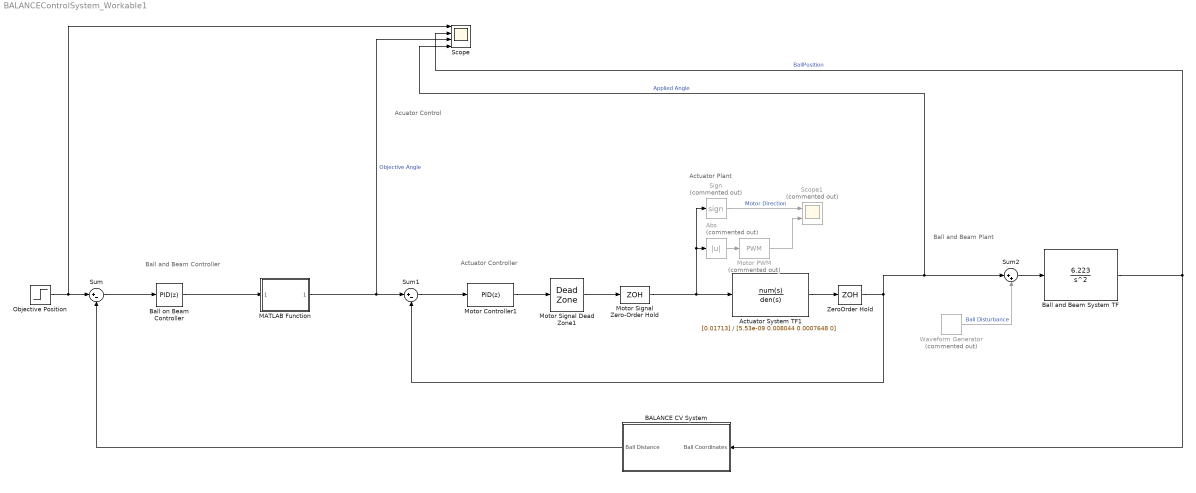
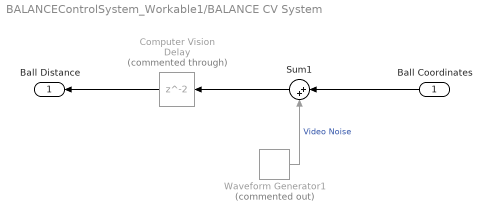
== matlab function BALANCEControlSystem_Workable1/MATLAB Function ==
function angleout = disturb(anglein)

if(abs(anglein)<0.01 && abs(anglein)>0.001)
    angleout=sign(anglein)*0.01;
else
    angleout=anglein;
end
end

/*
 * BALANCEControlSystem_Workable1.c
 *
 * Academic License - for use in teaching, academic research, and meeting
 * course requirements at degree granting institutions only.  Not for
 * government, commercial, or other organizational use.
 *
 * Code generation for model "BALANCEControlSystem_Workable1".
 *
 * Model version              : 1.72
 * Simulink Coder version : 9.7 (R2022a) 13-Nov-2021
 * C source code generated on : Mon Aug  8 18:08:28 2022
 *
 * Target selection: grt.tlc
 * Note: GRT includes extra infrastructure and instrumentation for prototyping
 * Embedded hardware selection: Intel->x86-64 (Windows64)
 * Code generation objective: Debugging
 * Validation result: Not run
 */

#include "BALANCEControlSystem_Workable1.h"
#include <math.h>
#include "rt_nonfinite.h"
#include "rtwtypes.h"
#include "BALANCEControlSystem_Workable1_private.h"

/* Block signals (default storage) */
B_BALANCEControlSystem_Workab_T BALANCEControlSystem_Workable_B;

/* Continuous states */
X_BALANCEControlSystem_Workab_T BALANCEControlSystem_Workable_X;

/* Block states (default storage) */
DW_BALANCEControlSystem_Worka_T BALANCEControlSystem_Workabl_DW;

/* Real-time model */
static RT_MODEL_BALANCEControlSystem_T BALANCEControlSystem_Workabl_M_;
RT_MODEL_BALANCEControlSystem_T *const BALANCEControlSystem_Workabl_M =
  &BALANCEControlSystem_Workabl_M_;

/*
 * This function updates continuous states using the ODE3 fixed-step
 * solver algorithm
 */
static void rt_ertODEUpdateContinuousStates(RTWSolverInfo *si )
{
  /* Solver Matrices */
  static const real_T rt_ODE3_A[3] = {
    1.0/2.0, 3.0/4.0, 1.0
  };

  static const real_T rt_ODE3_B[3][3] = {
    { 1.0/2.0, 0.0, 0.0 },

    { 0.0, 3.0/4.0, 0.0 },

    { 2.0/9.0, 1.0/3.0, 4.0/9.0 }
  };

  time_T t = rtsiGetT(si);
  time_T tnew = rtsiGetSolverStopTime(si);
  time_T h = rtsiGetStepSize(si);
  real_T *x = rtsiGetContStates(si);
  ODE3_IntgData *id = (ODE3_IntgData *)rtsiGetSolverData(si);
  real_T *y = id->y;
  real_T *f0 = id->f[0];
  real_T *f1 = id->f[1];
  real_T *f2 = id->f[2];
  real_T hB[3];
  int_T i;
  int_T nXc = 5;
  rtsiSetSimTimeStep(si,MINOR_TIME_STEP);

  /* Save the state values at time t in y, we'll use x as ynew. */
  (void) memcpy(y, x,
                (uint_T)nXc*sizeof(real_T));

  /* Assumes that rtsiSetT and ModelOutputs are up-to-date */
  /* f0 = f(t,y) */
  rtsiSetdX(si, f0);
  BALANCEControlSystem_Workable1_derivatives();

  /* f(:,2) = feval(odefile, t + hA(1), y + f*hB(:,1), args(:)(*)); */
  hB[0] = h * rt_ODE3_B[0][0];
  for (i = 0; i < nXc; i++) {
    x[i] = y[i] + (f0[i]*hB[0]);
  }

  rtsiSetT(si, t + h*rt_ODE3_A[0]);
  rtsiSetdX(si, f1);
  BALANCEControlSystem_Workable1_step();
  BALANCEControlSystem_Workable1_derivatives();

  /* f(:,3) = feval(odefile, t + hA(2), y + f*hB(:,2), args(:)(*)); */
  for (i = 0; i <= 1; i++) {
    hB[i] = h * rt_ODE3_B[1][i];
  }

  for (i = 0; i < nXc; i++) {
    x[i] = y[i] + (f0[i]*hB[0] + f1[i]*hB[1]);
  }

  rtsiSetT(si, t + h*rt_ODE3_A[1]);
  rtsiSetdX(si, f2);
  BALANCEControlSystem_Workable1_step();
  BALANCEControlSystem_Workable1_derivatives();

  /* tnew = t + hA(3);
     ynew = y + f*hB(:,3); */
  for (i = 0; i <= 2; i++) {
    hB[i] = h * rt_ODE3_B[2][i];
  }

  for (i = 0; i < nXc; i++) {
    x[i] = y[i] + (f0[i]*hB[0] + f1[i]*hB[1] + f2[i]*hB[2]);
  }

  rtsiSetT(si, tnew);
  rtsiSetSimTimeStep(si,MAJOR_TIME_STEP);
}

/* Model step function */
void BALANCEControlSystem_Workable1_step(void)
{
  real_T currentTime;
  if (rtmIsMajorTimeStep(BALANCEControlSystem_Workabl_M)) {
    /* set solver stop time */
    if (!(BALANCEControlSystem_Workabl_M->Timing.clockTick0+1)) {
      rtsiSetSolverStopTime(&BALANCEControlSystem_Workabl_M->solverInfo,
                            ((BALANCEControlSystem_Workabl_M->Timing.clockTickH0
        + 1) * BALANCEControlSystem_Workabl_M->Timing.stepSize0 * 4294967296.0));
    } else {
      rtsiSetSolverStopTime(&BALANCEControlSystem_Workabl_M->solverInfo,
                            ((BALANCEControlSystem_Workabl_M->Timing.clockTick0
        + 1) * BALANCEControlSystem_Workabl_M->Timing.stepSize0 +
        BALANCEControlSystem_Workabl_M->Timing.clockTickH0 *
        BALANCEControlSystem_Workabl_M->Timing.stepSize0 * 4294967296.0));
    }
  }                                    /* end MajorTimeStep */

  /* Update absolute time of base rate at minor time step */
  if (rtmIsMinorTimeStep(BALANCEControlSystem_Workabl_M)) {
    BALANCEControlSystem_Workabl_M->Timing.t[0] = rtsiGetT
      (&BALANCEControlSystem_Workabl_M->solverInfo);
  }

  /* Step: '<Root>/Objective Position' */
  currentTime = BALANCEControlSystem_Workabl_M->Timing.t[0];
  if (currentTime < BALANCEControlSystem_Workable_P.ObjectivePosition_Time) {
    /* Step: '<Root>/Objective Position' */
    BALANCEControlSystem_Workable_B.ObjectivePosition =
      BALANCEControlSystem_Workable_P.ObjectivePosition_Y0;
  } else {
    /* Step: '<Root>/Objective Position' */
    BALANCEControlSystem_Workable_B.ObjectivePosition =
      BALANCEControlSystem_Workable_P.ObjectivePosition_YFinal;
  }

  /* End of Step: '<Root>/Objective Position' */

  /* TransferFcn: '<Root>/Ball and Beam System TF' */
  BALANCEControlSystem_Workable_B.BallPosition = 0.0;
  BALANCEControlSystem_Workable_B.BallPosition +=
    BALANCEControlSystem_Workable_P.BallandBeamSystemTF_C[0] *
    BALANCEControlSystem_Workable_X.BallandBeamSystemTF_CSTATE[0];
  BALANCEControlSystem_Workable_B.BallPosition +=
    BALANCEControlSystem_Workable_P.BallandBeamSystemTF_C[1] *
    BALANCEControlSystem_Workable_X.BallandBeamSystemTF_CSTATE[1];

  /* Sum: '<S1>/Sum1' */
  BALANCEControlSystem_Workable_B.Sum1 =
    BALANCEControlSystem_Workable_B.BallPosition;

  /* Sum: '<Root>/Sum' */
  BALANCEControlSystem_Workable_B.Sum =
    BALANCEControlSystem_Workable_B.ObjectivePosition -
    BALANCEControlSystem_Workable_B.Sum1;

  /* TransferFcn: '<Root>/Actuator System TF1' */
  BALANCEControlSystem_Workable_B.ActuatorSystemTF1 =
    BALANCEControlSystem_Workable_P.ActuatorSystemTF1_C[0] *
    BALANCEControlSystem_Workable_X.ActuatorSystemTF1_CSTATE[0];
  BALANCEControlSystem_Workable_B.ActuatorSystemTF1 +=
    BALANCEControlSystem_Workable_P.ActuatorSystemTF1_C[1] *
    BALANCEControlSystem_Workable_X.ActuatorSystemTF1_CSTATE[1];
  BALANCEControlSystem_Workable_B.ActuatorSystemTF1 +=
    BALANCEControlSystem_Workable_P.ActuatorSystemTF1_C[2] *
    BALANCEControlSystem_Workable_X.ActuatorSystemTF1_CSTATE[2];
  if (rtmIsMajorTimeStep(BALANCEControlSystem_Workabl_M)) {
    real_T u1;
    real_T u2;

    /* Gain: '<S43>/Proportional Gain' */
    BALANCEControlSystem_Workable_B.ProportionalGain =
      BALANCEControlSystem_Workable_P.BallonBeamController_P *
      BALANCEControlSystem_Workable_B.Sum;

    /* DiscreteIntegrator: '<S38>/Integrator' */
    BALANCEControlSystem_Workable_B.Integrator =
      BALANCEControlSystem_Workabl_DW.Integrator_DSTATE;

    /* Gain: '<S32>/Derivative Gain' */
    BALANCEControlSystem_Workable_B.DerivativeGain =
      BALANCEControlSystem_Workable_P.BallonBeamController_D *
      BALANCEControlSystem_Workable_B.Sum;

    /* DiscreteIntegrator: '<S33>/Filter' */
    BALANCEControlSystem_Workable_B.Filter =
      BALANCEControlSystem_Workabl_DW.Filter_DSTATE;

    /* Sum: '<S33>/SumD' */
    BALANCEControlSystem_Workable_B.SumD =
      BALANCEControlSystem_Workable_B.DerivativeGain -
      BALANCEControlSystem_Workable_B.Filter;

    /* Gain: '<S41>/Filter Coefficient' */
    BALANCEControlSystem_Workable_B.FilterCoefficient =
      BALANCEControlSystem_Workable_P.BallonBeamController_N *
      BALANCEControlSystem_Workable_B.SumD;

    /* Sum: '<S47>/Sum' */
    BALANCEControlSystem_Workable_B.Sum_l =
      (BALANCEControlSystem_Workable_B.ProportionalGain +
       BALANCEControlSystem_Workable_B.Integrator) +
      BALANCEControlSystem_Workable_B.FilterCoefficient;

    /* Saturate: '<S45>/Saturation' */
    currentTime = BALANCEControlSystem_Workable_B.Sum_l;
    u1 = BALANCEControlSystem_Workable_P.BallonBeamController_LowerSatur;
    u2 = BALANCEControlSystem_Workable_P.BallonBeamController_UpperSatur;
    if (currentTime > u2) {
      /* Saturate: '<S45>/Saturation' */
      BALANCEControlSystem_Workable_B.Saturation = u2;
    } else if (currentTime < u1) {
      /* Saturate: '<S45>/Saturation' */
      BALANCEControlSystem_Workable_B.Saturation = u1;
    } else {
      /* Saturate: '<S45>/Saturation' */
      BALANCEControlSystem_Workable_B.Saturation = currentTime;
    }

    /* End of Saturate: '<S45>/Saturation' */

    /* MATLAB Function: '<Root>/MATLAB Function' */
    /* :  if(abs(anglein)<0.01 && abs(anglein)>0.001) */
    if ((fabs(BALANCEControlSystem_Workable_B.Saturation) < 0.01) && (fabs
         (BALANCEControlSystem_Workable_B.Saturation) > 0.001)) {
      /* :  angleout=sign(anglein)*0.01; */
      currentTime = BALANCEControlSystem_Workable_B.Saturation;
      if (!rtIsNaN(currentTime)) {
        if (currentTime < 0.0) {
          currentTime = -1.0;
        } else {
          currentTime = (currentTime > 0.0);
        }
      }

      BALANCEControlSystem_Workable_B.angleout = currentTime * 0.01;
    } else {
      /* :  else */
      /* :  angleout=anglein; */
      BALANCEControlSystem_Workable_B.angleout =
        BALANCEControlSystem_Workable_B.Saturation;
    }

    /* End of MATLAB Function: '<Root>/MATLAB Function' */

    /* ZeroOrderHold: '<Root>/ZeroOrder Hold' */
    BALANCEControlSystem_Workable_B.AppliedAngle =
      BALANCEControlSystem_Workable_B.ActuatorSystemTF1;

    /* DeadZone: '<S31>/DeadZone' */
    if (BALANCEControlSystem_Workable_B.Sum_l >
        BALANCEControlSystem_Workable_P.BallonBeamController_UpperSatur) {
      /* DeadZone: '<S31>/DeadZone' */
      BALANCEControlSystem_Workable_B.DeadZone =
        BALANCEControlSystem_Workable_B.Sum_l -
        BALANCEControlSystem_Workable_P.BallonBeamController_UpperSatur;
    } else if (BALANCEControlSystem_Workable_B.Sum_l >=
               BALANCEControlSystem_Workable_P.BallonBeamController_LowerSatur)
    {
      /* DeadZone: '<S31>/DeadZone' */
      BALANCEControlSystem_Workable_B.DeadZone = 0.0;
    } else {
      /* DeadZone: '<S31>/DeadZone' */
      BALANCEControlSystem_Workable_B.DeadZone =
        BALANCEControlSystem_Workable_B.Sum_l -
        BALANCEControlSystem_Workable_P.BallonBeamController_LowerSatur;
    }

    /* End of DeadZone: '<S31>/DeadZone' */

    /* RelationalOperator: '<S29>/Relational Operator' incorporates:
     *  Constant: '<S29>/Constant5'
     */
    BALANCEControlSystem_Workable_B.RelationalOperator =
      (BALANCEControlSystem_Workable_P.Constant5_Value !=
       BALANCEControlSystem_Workable_B.DeadZone);

    /* RelationalOperator: '<S29>/fix for DT propagation issue' incorporates:
     *  Constant: '<S29>/Constant5'
     */
    BALANCEControlSystem_Workable_B.fixforDTpropagationissue =
      (BALANCEControlSystem_Workable_B.DeadZone >
       BALANCEControlSystem_Workable_P.Constant5_Value);

    /* Switch: '<S29>/Switch1' */
    if (BALANCEControlSystem_Workable_B.fixforDTpropagationissue) {
      /* Switch: '<S29>/Switch1' incorporates:
       *  Constant: '<S29>/Constant'
       */
      BALANCEControlSystem_Workable_B.Switch1 =
        BALANCEControlSystem_Workable_P.Constant_Value;
    } else {
      /* Switch: '<S29>/Switch1' incorporates:
       *  Constant: '<S29>/Constant2'
       */
      BALANCEControlSystem_Workable_B.Switch1 =
        BALANCEControlSystem_Workable_P.Constant2_Value;
    }

    /* End of Switch: '<S29>/Switch1' */

    /* Gain: '<S35>/Integral Gain' */
    BALANCEControlSystem_Workable_B.IntegralGain =
      BALANCEControlSystem_Workable_P.BallonBeamController_I *
      BALANCEControlSystem_Workable_B.Sum;

    /* RelationalOperator: '<S29>/fix for DT propagation issue1' incorporates:
     *  Constant: '<S29>/Constant5'
     */
    BALANCEControlSystem_Workable_B.fixforDTpropagationissue1 =
      (BALANCEControlSystem_Workable_B.IntegralGain >
       BALANCEControlSystem_Workable_P.Constant5_Value);

    /* Switch: '<S29>/Switch2' */
    if (BALANCEControlSystem_Workable_B.fixforDTpropagationissue1) {
      /* Switch: '<S29>/Switch2' incorporates:
       *  Constant: '<S29>/Constant3'
       */
      BALANCEControlSystem_Workable_B.Switch2 =
        BALANCEControlSystem_Workable_P.Constant3_Value;
    } else {
      /* Switch: '<S29>/Switch2' incorporates:
       *  Constant: '<S29>/Constant4'
       */
      BALANCEControlSystem_Workable_B.Switch2 =
        BALANCEControlSystem_Workable_P.Constant4_Value;
    }

    /* End of Switch: '<S29>/Switch2' */

    /* RelationalOperator: '<S29>/Equal1' */
    BALANCEControlSystem_Workable_B.Equal1 =
      (BALANCEControlSystem_Workable_B.Switch1 ==
       BALANCEControlSystem_Workable_B.Switch2);

    /* Logic: '<S29>/AND3' */
    BALANCEControlSystem_Workable_B.AND3 =
      (BALANCEControlSystem_Workable_B.RelationalOperator &&
       BALANCEControlSystem_Workable_B.Equal1);

    /* Switch: '<S29>/Switch' */
    if (BALANCEControlSystem_Workable_B.AND3) {
      /* Switch: '<S29>/Switch' incorporates:
       *  Constant: '<S29>/Constant1'
       */
      BALANCEControlSystem_Workable_B.Switch =
        BALANCEControlSystem_Workable_P.Constant1_Value;
    } else {
      /* Switch: '<S29>/Switch' */
      BALANCEControlSystem_Workable_B.Switch =
        BALANCEControlSystem_Workable_B.IntegralGain;
    }

    /* End of Switch: '<S29>/Switch' */

    /* Sum: '<Root>/Sum1' */
    BALANCEControlSystem_Workable_B.Sum1_h =
      BALANCEControlSystem_Workable_B.angleout -
      BALANCEControlSystem_Workable_B.AppliedAngle;

    /* Gain: '<S93>/Proportional Gain' */
    BALANCEControlSystem_Workable_B.ProportionalGain_n =
      BALANCEControlSystem_Workable_P.MotorController1_P *
      BALANCEControlSystem_Workable_B.Sum1_h;

    /* DiscreteIntegrator: '<S88>/Integrator' */
    BALANCEControlSystem_Workable_B.Integrator_c =
      BALANCEControlSystem_Workabl_DW.Integrator_DSTATE_o;

    /* Gain: '<S82>/Derivative Gain' */
    BALANCEControlSystem_Workable_B.DerivativeGain_g =
      BALANCEControlSystem_Workable_P.MotorController1_D *
      BALANCEControlSystem_Workable_B.Sum1_h;

    /* DiscreteIntegrator: '<S83>/Filter' */
    BALANCEControlSystem_Workable_B.Filter_h =
      BALANCEControlSystem_Workabl_DW.Filter_DSTATE_n;

    /* Sum: '<S83>/SumD' */
    BALANCEControlSystem_Workable_B.SumD_n =
      BALANCEControlSystem_Workable_B.DerivativeGain_g -
      BALANCEControlSystem_Workable_B.Filter_h;

    /* Gain: '<S91>/Filter Coefficient' */
    BALANCEControlSystem_Workable_B.FilterCoefficient_p =
      BALANCEControlSystem_Workable_P.MotorController1_N *
      BALANCEControlSystem_Workable_B.SumD_n;

    /* Sum: '<S97>/Sum' */
    BALANCEControlSystem_Workable_B.Sum_f =
      (BALANCEControlSystem_Workable_B.ProportionalGain_n +
       BALANCEControlSystem_Workable_B.Integrator_c) +
      BALANCEControlSystem_Workable_B.FilterCoefficient_p;

    /* DeadZone: '<S81>/DeadZone' */
    if (BALANCEControlSystem_Workable_B.Sum_f >
        BALANCEControlSystem_Workable_P.MotorController1_UpperSaturatio) {
      /* DeadZone: '<S81>/DeadZone' */
      BALANCEControlSystem_Workable_B.DeadZone_h =
        BALANCEControlSystem_Workable_B.Sum_f -
        BALANCEControlSystem_Workable_P.MotorController1_UpperSaturatio;
    } else if (BALANCEControlSystem_Workable_B.Sum_f >=
               BALANCEControlSystem_Workable_P.MotorController1_LowerSaturatio)
    {
      /* DeadZone: '<S81>/DeadZone' */
      BALANCEControlSystem_Workable_B.DeadZone_h = 0.0;
    } else {
      /* DeadZone: '<S81>/DeadZone' */
      BALANCEControlSystem_Workable_B.DeadZone_h =
        BALANCEControlSystem_Workable_B.Sum_f -
        BALANCEControlSystem_Workable_P.MotorController1_LowerSaturatio;
    }

    /* End of DeadZone: '<S81>/DeadZone' */

    /* RelationalOperator: '<S79>/Relational Operator' incorporates:
     *  Constant: '<S79>/Constant5'
     */
    BALANCEControlSystem_Workable_B.RelationalOperator_n =
      (BALANCEControlSystem_Workable_P.Constant5_Value_p !=
       BALANCEControlSystem_Workable_B.DeadZone_h);

    /* RelationalOperator: '<S79>/fix for DT propagation issue' incorporates:
     *  Constant: '<S79>/Constant5'
     */
    BALANCEControlSystem_Workable_B.fixforDTpropagationissue_d =
      (BALANCEControlSystem_Workable_B.DeadZone_h >
       BALANCEControlSystem_Workable_P.Constant5_Value_p);

    /* Switch: '<S79>/Switch1' */
    if (BALANCEControlSystem_Workable_B.fixforDTpropagationissue_d) {
      /* Switch: '<S79>/Switch1' incorporates:
       *  Constant: '<S79>/Constant'
       */
      BALANCEControlSystem_Workable_B.Switch1_o =
        BALANCEControlSystem_Workable_P.Constant_Value_e;
    } else {
      /* Switch: '<S79>/Switch1' incorporates:
       *  Constant: '<S79>/Constant2'
       */
      BALANCEControlSystem_Workable_B.Switch1_o =
        BALANCEControlSystem_Workable_P.Constant2_Value_f;
    }

    /* End of Switch: '<S79>/Switch1' */

    /* Gain: '<S85>/Integral Gain' */
    BALANCEControlSystem_Workable_B.IntegralGain_k =
      BALANCEControlSystem_Workable_P.MotorController1_I *
      BALANCEControlSystem_Workable_B.Sum1_h;

    /* RelationalOperator: '<S79>/fix for DT propagation issue1' incorporates:
     *  Constant: '<S79>/Constant5'
     */
    BALANCEControlSystem_Workable_B.fixforDTpropagationissue1_i =
      (BALANCEControlSystem_Workable_B.IntegralGain_k >
       BALANCEControlSystem_Workable_P.Constant5_Value_p);

    /* Switch: '<S79>/Switch2' */
    if (BALANCEControlSystem_Workable_B.fixforDTpropagationissue1_i) {
      /* Switch: '<S79>/Switch2' incorporates:
       *  Constant: '<S79>/Constant3'
       */
      BALANCEControlSystem_Workable_B.Switch2_e =
        BALANCEControlSystem_Workable_P.Constant3_Value_g;
    } else {
      /* Switch: '<S79>/Switch2' incorporates:
       *  Constant: '<S79>/Constant4'
       */
      BALANCEControlSystem_Workable_B.Switch2_e =
        BALANCEControlSystem_Workable_P.Constant4_Value_l;
    }

    /* End of Switch: '<S79>/Switch2' */

    /* RelationalOperator: '<S79>/Equal1' */
    BALANCEControlSystem_Workable_B.Equal1_e =
      (BALANCEControlSystem_Workable_B.Switch1_o ==
       BALANCEControlSystem_Workable_B.Switch2_e);

    /* Logic: '<S79>/AND3' */
    BALANCEControlSystem_Workable_B.AND3_p =
      (BALANCEControlSystem_Workable_B.RelationalOperator_n &&
       BALANCEControlSystem_Workable_B.Equal1_e);

    /* Switch: '<S79>/Switch' */
    if (BALANCEControlSystem_Workable_B.AND3_p) {
      /* Switch: '<S79>/Switch' incorporates:
       *  Constant: '<S79>/Constant1'
       */
      BALANCEControlSystem_Workable_B.Switch_k =
        BALANCEControlSystem_Workable_P.Constant1_Value_c;
    } else {
      /* Switch: '<S79>/Switch' */
      BALANCEControlSystem_Workable_B.Switch_k =
        BALANCEControlSystem_Workable_B.IntegralGain_k;
    }

    /* End of Switch: '<S79>/Switch' */

    /* Saturate: '<S95>/Saturation' */
    currentTime = BALANCEControlSystem_Workable_B.Sum_f;
    u1 = BALANCEControlSystem_Workable_P.MotorController1_LowerSaturatio;
    u2 = BALANCEControlSystem_Workable_P.MotorController1_UpperSaturatio;
    if (currentTime > u2) {
      /* Saturate: '<S95>/Saturation' */
      BALANCEControlSystem_Workable_B.Saturation_m = u2;
    } else if (currentTime < u1) {
      /* Saturate: '<S95>/Saturation' */
      BALANCEControlSystem_Workable_B.Saturation_m = u1;
    } else {
      /* Saturate: '<S95>/Saturation' */
      BALANCEControlSystem_Workable_B.Saturation_m = currentTime;
    }

    /* End of Saturate: '<S95>/Saturation' */

    /* DeadZone: '<Root>/Motor Signal Dead Zone1' */
    if (BALANCEControlSystem_Workable_B.Saturation_m >
        BALANCEControlSystem_Workable_P.MotorSignalDeadZone1_End) {
      /* DeadZone: '<Root>/Motor Signal Dead Zone1' */
      BALANCEControlSystem_Workable_B.MotorSignalDeadZone1 =
        BALANCEControlSystem_Workable_B.Saturation_m -
        BALANCEControlSystem_Workable_P.MotorSignalDeadZone1_End;
    } else if (BALANCEControlSystem_Workable_B.Saturation_m >=
               BALANCEControlSystem_Workable_P.MotorSignalDeadZone1_Start) {
      /* DeadZone: '<Root>/Motor Signal Dead Zone1' */
      BALANCEControlSystem_Workable_B.MotorSignalDeadZone1 = 0.0;
    } else {
      /* DeadZone: '<Root>/Motor Signal Dead Zone1' */
      BALANCEControlSystem_Workable_B.MotorSignalDeadZone1 =
        BALANCEControlSystem_Workable_B.Saturation_m -
        BALANCEControlSystem_Workable_P.MotorSignalDeadZone1_Start;
    }

    /* End of DeadZone: '<Root>/Motor Signal Dead Zone1' */

    /* Sum: '<Root>/Sum2' */
    BALANCEControlSystem_Workable_B.Sum2 =
      BALANCEControlSystem_Workable_B.AppliedAngle;
  }

  if (rtmIsMajorTimeStep(BALANCEControlSystem_Workabl_M)) {
    /* Matfile logging */
    rt_UpdateTXYLogVars(BALANCEControlSystem_Workabl_M->rtwLogInfo,
                        (BALANCEControlSystem_Workabl_M->Timing.t));
  }                                    /* end MajorTimeStep */

  if (rtmIsMajorTimeStep(BALANCEControlSystem_Workabl_M)) {
    if (rtmIsMajorTimeStep(BALANCEControlSystem_Workabl_M)) {
      /* Update for DiscreteIntegrator: '<S38>/Integrator' */
      BALANCEControlSystem_Workabl_DW.Integrator_DSTATE +=
        BALANCEControlSystem_Workable_P.Integrator_gainval *
        BALANCEControlSystem_Workable_B.Switch;

      /* Update for DiscreteIntegrator: '<S33>/Filter' */
      BALANCEControlSystem_Workabl_DW.Filter_DSTATE +=
        BALANCEControlSystem_Workable_P.Filter_gainval *
        BALANCEControlSystem_Workable_B.FilterCoefficient;

      /* Update for DiscreteIntegrator: '<S88>/Integrator' */
      BALANCEControlSystem_Workabl_DW.Integrator_DSTATE_o +=
        BALANCEControlSystem_Workable_P.Integrator_gainval_l *
        BALANCEControlSystem_Workable_B.Switch_k;

      /* Update for DiscreteIntegrator: '<S83>/Filter' */
      BALANCEControlSystem_Workabl_DW.Filter_DSTATE_n +=
        BALANCEControlSystem_Workable_P.Filter_gainval_i *
        BALANCEControlSystem_Workable_B.FilterCoefficient_p;
    }
  }                                    /* end MajorTimeStep */

  if (rtmIsMajorTimeStep(BALANCEControlSystem_Workabl_M)) {
    /* signal main to stop simulation */
    {                                  /* Sample time: [0.0s, 0.0s] */
      if ((rtmGetTFinal(BALANCEControlSystem_Workabl_M)!=-1) &&
          !((rtmGetTFinal(BALANCEControlSystem_Workabl_M)-
             (((BALANCEControlSystem_Workabl_M->Timing.clockTick1+
                BALANCEControlSystem_Workabl_M->Timing.clockTickH1* 4294967296.0))
              * 0.033333333333333333)) >
            (((BALANCEControlSystem_Workabl_M->Timing.clockTick1+
               BALANCEControlSystem_Workabl_M->Timing.clockTickH1* 4294967296.0))
             * 0.033333333333333333) * (DBL_EPSILON))) {
        rtmSetErrorStatus(BALANCEControlSystem_Workabl_M, "Simulation finished");
      }
    }

    rt_ertODEUpdateContinuousStates(&BALANCEControlSystem_Workabl_M->solverInfo);

    /* Update absolute time for base rate */
    /* The "clockTick0" counts the number of times the code of this task has
     * been executed. The absolute time is the multiplication of "clockTick0"
     * and "Timing.stepSize0". Size of "clockTick0" ensures timer will not
     * overflow during the application lifespan selected.
     * Timer of this task consists of two 32 bit unsigned integers.
     * The two integers represent the low bits Timing.clockTick0 and the high bits
     * Timing.clockTickH0. When the low bit overflows to 0, the high bits increment.
     */
    if (!(++BALANCEControlSystem_Workabl_M->Timing.clockTick0)) {
      ++BALANCEControlSystem_Workabl_M->Timing.clockTickH0;
    }

    BALANCEControlSystem_Workabl_M->Timing.t[0] = rtsiGetSolverStopTime
      (&BALANCEControlSystem_Workabl_M->solverInfo);

    {
      /* Update absolute timer for sample time: [0.033333333333333333s, 0.0s] */
      /* The "clockTick1" counts the number of times the code of this task has
       * been executed. The resolution of this integer timer is 0.033333333333333333, which is the step size
       * of the task. Size of "clockTick1" ensures timer will not overflow during the
       * application lifespan selected.
       * Timer of this task consists of two 32 bit unsigned integers.
       * The two integers represent the low bits Timing.clockTick1 and the high bits
       * Timing.clockTickH1. When the low bit overflows to 0, the high bits increment.
       */
      BALANCEControlSystem_Workabl_M->Timing.clockTick1++;
      if (!BALANCEControlSystem_Workabl_M->Timing.clockTick1) {
        BALANCEControlSystem_Workabl_M->Timing.clockTickH1++;
      }
    }
  }                                    /* end MajorTimeStep */
}
